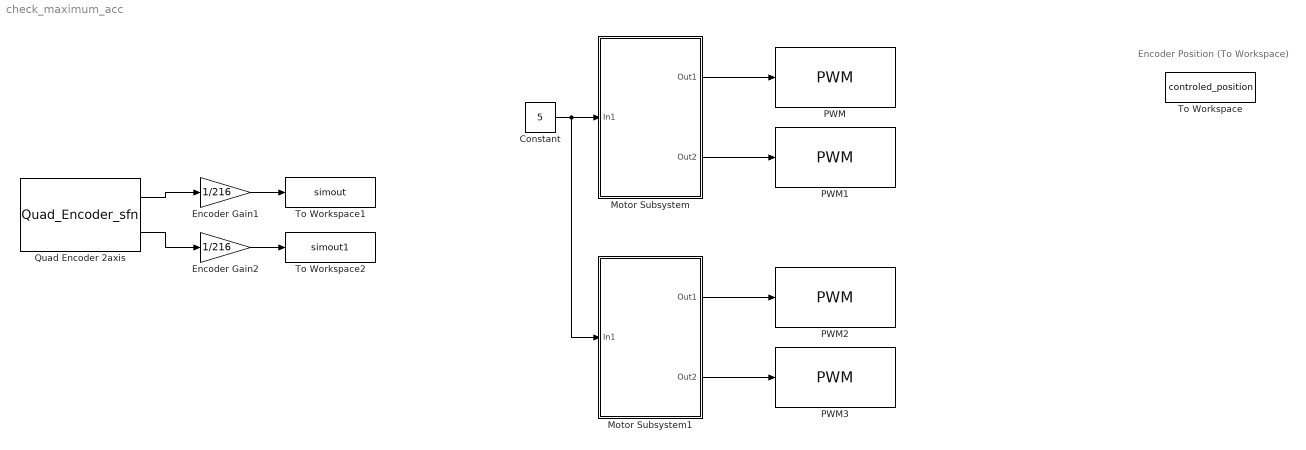
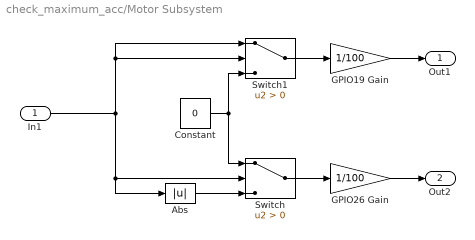
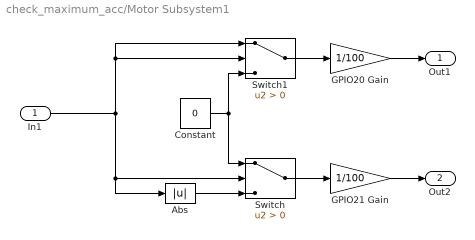
/*
 * check_maximum_acc.c
 *
 * Academic License - for use in teaching, academic research, and meeting
 * course requirements at degree granting institutions only.  Not for
 * government, commercial, or other organizational use.
 *
 * Code generation for model "check_maximum_acc".
 *
 * Model version              : 1.18
 * Simulink Coder version : 9.5 (R2021a) 14-Nov-2020
 * C source code generated on : Mon Dec  4 18:04:43 2023
 *
 * Target selection: ert.tlc
 * Note: GRT includes extra infrastructure and instrumentation for prototyping
 * Embedded hardware selection: ARM Compatible->ARM Cortex
 * Code generation objectives: Unspecified
 * Validation result: Not run
 */

#include "check_maximum_acc.h"
#include "check_maximum_acc_private.h"

/* Block signals (default storage) */
B_check_maximum_acc_T check_maximum_acc_B;

/* Block states (default storage) */
DW_check_maximum_acc_T check_maximum_acc_DW;

/* Real-time model */
static RT_MODEL_check_maximum_acc_T check_maximum_acc_M_;
RT_MODEL_check_maximum_acc_T *const check_maximum_acc_M = &check_maximum_acc_M_;

/* Model step function */
void check_maximum_acc_step(void)
{
  real_T u0;

  /* Switch: '<S1>/Switch1' incorporates:
   *  Constant: '<Root>/Constant'
   *  Constant: '<S1>/Constant'
   */
  if (check_maximum_acc_P.Constant_Value > check_maximum_acc_P.Switch1_Threshold)
  {
    u0 = check_maximum_acc_P.Constant_Value;
  } else {
    u0 = check_maximum_acc_P.Constant_Value_d;
  }

  /* End of Switch: '<S1>/Switch1' */

  /* Gain: '<S1>/GPIO19 Gain' */
  u0 *= check_maximum_acc_P.GPIO19Gain_Gain;

  /* MATLABSystem: '<Root>/PWM' */
  if (!(u0 < 1.0)) {
    u0 = 1.0;
  }

  if (!(u0 > 0.0)) {
    u0 = 0.0;
  }

  EXT_PWMBlock_setDutyCycle(check_maximum_acc_DW.obj_g.PinNumber, u0);

  /* End of MATLABSystem: '<Root>/PWM' */

  /* Switch: '<S1>/Switch' incorporates:
   *  Abs: '<S1>/Abs'
   *  Constant: '<Root>/Constant'
   *  Constant: '<S1>/Constant'
   */
  if (check_maximum_acc_P.Constant_Value > check_maximum_acc_P.Switch_Threshold)
  {
    u0 = check_maximum_acc_P.Constant_Value_d;
  } else {
    u0 = fabs(check_maximum_acc_P.Constant_Value);
  }

  /* End of Switch: '<S1>/Switch' */

  /* Gain: '<S1>/GPIO26 Gain' */
  u0 *= check_maximum_acc_P.GPIO26Gain_Gain;

  /* MATLABSystem: '<Root>/PWM1' */
  if (!(u0 < 1.0)) {
    u0 = 1.0;
  }

  if (!(u0 > 0.0)) {
    u0 = 0.0;
  }

  EXT_PWMBlock_setDutyCycle(check_maximum_acc_DW.obj_e.PinNumber, u0);

  /* End of MATLABSystem: '<Root>/PWM1' */

  /* Switch: '<S2>/Switch1' incorporates:
   *  Constant: '<Root>/Constant'
   *  Constant: '<S2>/Constant'
   */
  if (check_maximum_acc_P.Constant_Value >
      check_maximum_acc_P.Switch1_Threshold_c) {
    u0 = check_maximum_acc_P.Constant_Value;
  } else {
    u0 = check_maximum_acc_P.Constant_Value_e;
  }

  /* End of Switch: '<S2>/Switch1' */

  /* Gain: '<S2>/GPIO20 Gain' */
  u0 *= check_maximum_acc_P.GPIO20Gain_Gain;

  /* MATLABSystem: '<Root>/PWM2' */
  if (!(u0 < 1.0)) {
    u0 = 1.0;
  }

  if (!(u0 > 0.0)) {
    u0 = 0.0;
  }

  EXT_PWMBlock_setDutyCycle(check_maximum_acc_DW.obj_p.PinNumber, u0);

  /* End of MATLABSystem: '<Root>/PWM2' */

  /* Switch: '<S2>/Switch' incorporates:
   *  Abs: '<S2>/Abs'
   *  Constant: '<Root>/Constant'
   *  Constant: '<S2>/Constant'
   */
  if (check_maximum_acc_P.Constant_Value >
      check_maximum_acc_P.Switch_Threshold_m) {
    u0 = check_maximum_acc_P.Constant_Value_e;
  } else {
    u0 = fabs(check_maximum_acc_P.Constant_Value);
  }

  /* End of Switch: '<S2>/Switch' */

  /* Gain: '<S2>/GPIO21 Gain' */
  u0 *= check_maximum_acc_P.GPIO21Gain_Gain;

  /* MATLABSystem: '<Root>/PWM3' */
  if (!(u0 < 1.0)) {
    u0 = 1.0;
  }

  if (!(u0 > 0.0)) {
    u0 = 0.0;
  }

  EXT_PWMBlock_setDutyCycle(check_maximum_acc_DW.obj.PinNumber, u0);

  /* End of MATLABSystem: '<Root>/PWM3' */

  /* S-Function (Quad_Encoder_sfn): '<Root>/Quad Encoder 2axis' */
  Quad_Encoder_sfn_Outputs_wrapper(&check_maximum_acc_B.QuadEncoder2axis_o1,
    &check_maximum_acc_B.QuadEncoder2axis_o2,
    &check_maximum_acc_DW.QuadEncoder2axis_DSTATE,
    &check_maximum_acc_P.QuadEncoder2axis_P1, 1,
    &check_maximum_acc_P.QuadEncoder2axis_P2, 1,
    &check_maximum_acc_P.QuadEncoder2axis_P3, 1,
    &check_maximum_acc_P.QuadEncoder2axis_P4, 1,
    &check_maximum_acc_P.QuadEncoder2axis_P5, 1,
    &check_maximum_acc_P.QuadEncoder2axis_P6, 1);

  /* Gain: '<Root>/Encoder Gain1' */
  check_maximum_acc_B.EncoderGain1 = (int64_T)
    check_maximum_acc_P.EncoderGain1_Gain *
    check_maximum_acc_B.QuadEncoder2axis_o1;

  /* Gain: '<Root>/Encoder Gain2' */
  check_maximum_acc_B.EncoderGain2 = (int64_T)
    check_maximum_acc_P.EncoderGain2_Gain *
    check_maximum_acc_B.QuadEncoder2axis_o2;

  /* Update for S-Function (Quad_Encoder_sfn): '<Root>/Quad Encoder 2axis' */

  /* S-Function "Quad_Encoder_sfn_wrapper" Block: <Root>/Quad Encoder 2axis */
  Quad_Encoder_sfn_Update_wrapper(&check_maximum_acc_B.QuadEncoder2axis_o1,
    &check_maximum_acc_B.QuadEncoder2axis_o2,
    &check_maximum_acc_DW.QuadEncoder2axis_DSTATE,
    &check_maximum_acc_P.QuadEncoder2axis_P1, 1,
    &check_maximum_acc_P.QuadEncoder2axis_P2, 1,
    &check_maximum_acc_P.QuadEncoder2axis_P3, 1,
    &check_maximum_acc_P.QuadEncoder2axis_P4, 1,
    &check_maximum_acc_P.QuadEncoder2axis_P5, 1,
    &check_maximum_acc_P.QuadEncoder2axis_P6, 1);

  /* External mode */
  rtExtModeUploadCheckTrigger(1);

  {                                    /* Sample time: [0.001s, 0.0s] */
    rtExtModeUpload(0, (real_T)check_maximum_acc_M->Timing.taskTime0);
  }

  /* signal main to stop simulation */
  {                                    /* Sample time: [0.001s, 0.0s] */
    if ((rtmGetTFinal(check_maximum_acc_M)!=-1) &&
        !((rtmGetTFinal(check_maximum_acc_M)-
           check_maximum_acc_M->Timing.taskTime0) >
          check_maximum_acc_M->Timing.taskTime0 * (DBL_EPSILON))) {
      rtmSetErrorStatus(check_maximum_acc_M, "Simulation finished");
    }

    if (rtmGetStopRequested(check_maximum_acc_M)) {
      rtmSetErrorStatus(check_maximum_acc_M, "Simulation finished");
    }
  }

  /* Update absolute time for base rate */
  /* The "clockTick0" counts the number of times the code of this task has
   * been executed. The absolute time is the multiplication of "clockTick0"
   * and "Timing.stepSize0". Size of "clockTick0" ensures timer will not
   * overflow during the application lifespan selected.
   * Timer of this task consists of two 32 bit unsigned integers.
   * The two integers represent the low bits Timing.clockTick0 and the high bits
   * Timing.clockTickH0. When the low bit overflows to 0, the high bits increment.
   */
  if (!(++check_maximum_acc_M->Timing.clockTick0)) {
    ++check_maximum_acc_M->Timing.clockTickH0;
  }

  check_maximum_acc_M->Timing.taskTime0 = check_maximum_acc_M->Timing.clockTick0
    * check_maximum_acc_M->Timing.stepSize0 +
    check_maximum_acc_M->Timing.clockTickH0 *
    check_maximum_acc_M->Timing.stepSize0 * 4294967296.0;
}
